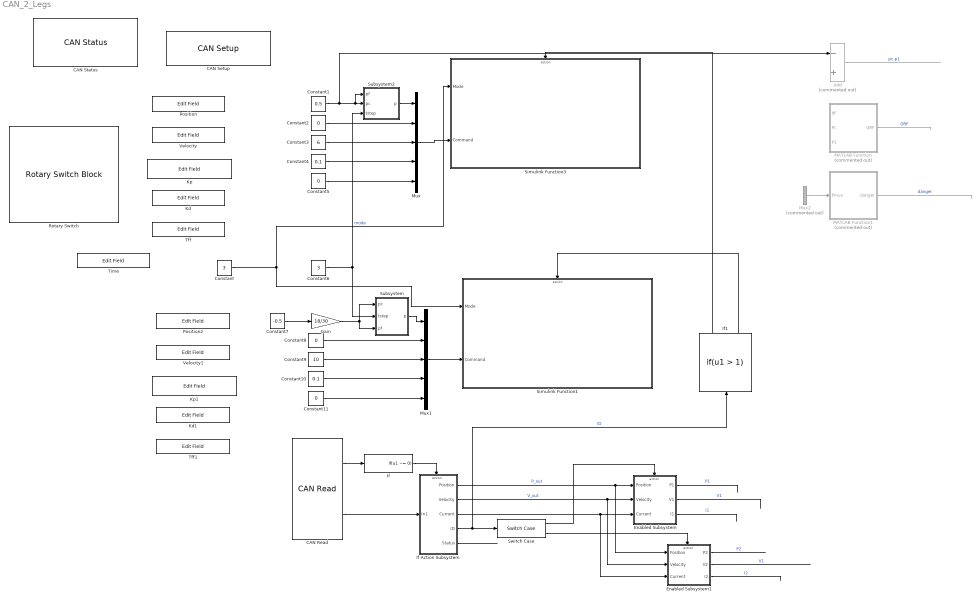
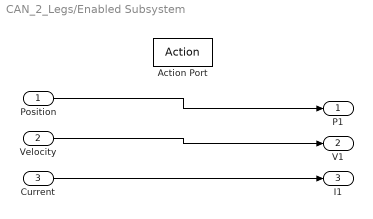
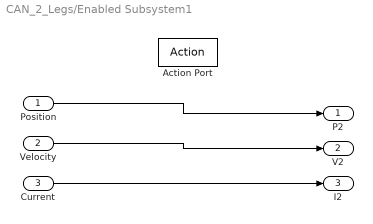
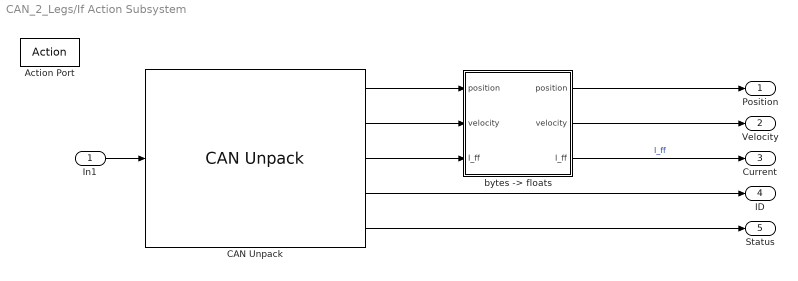
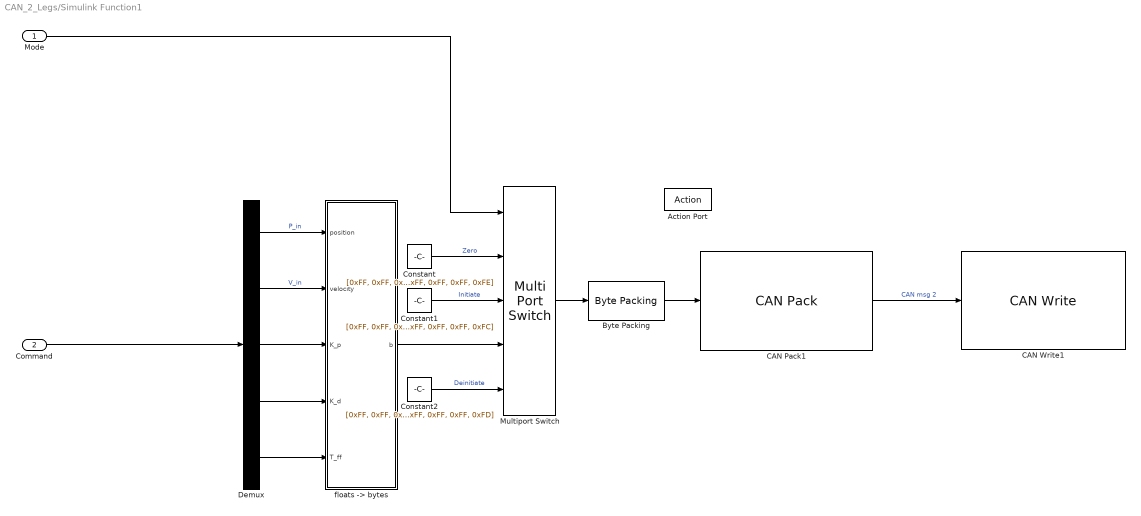
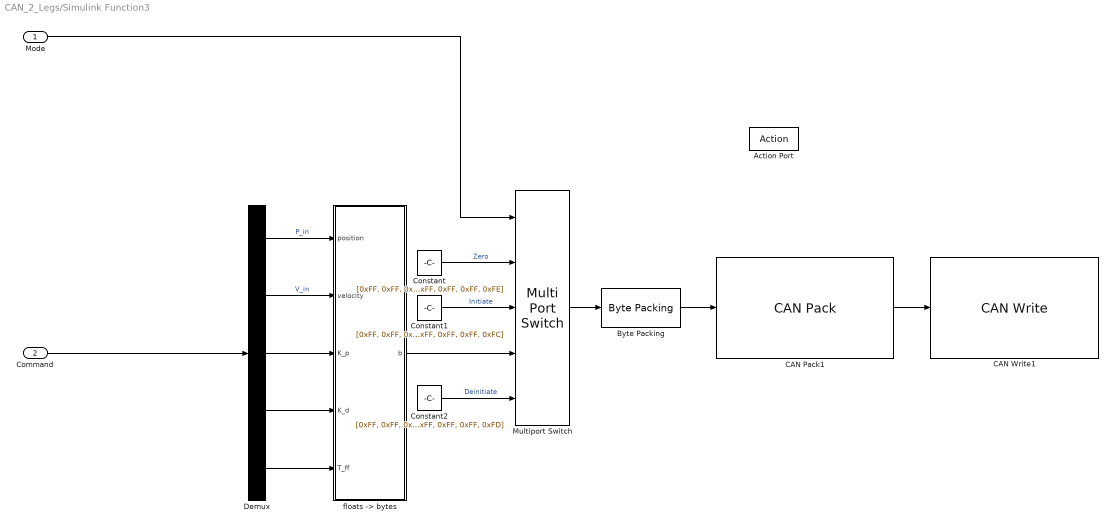
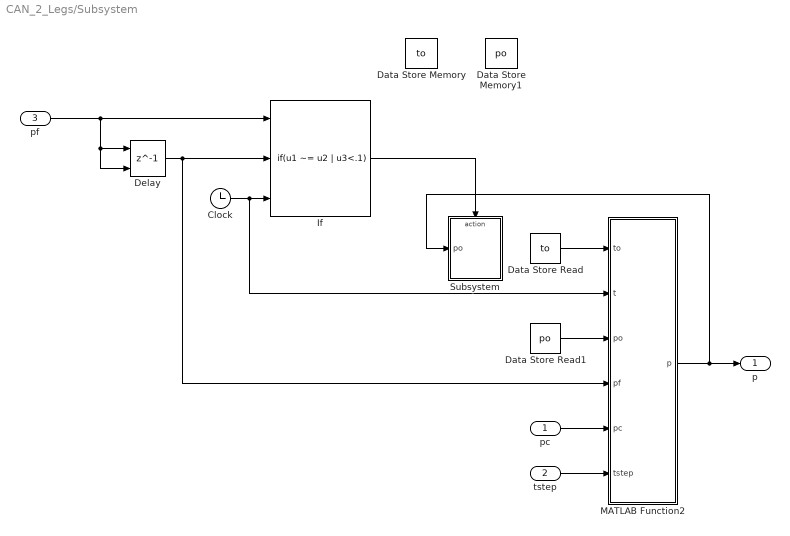
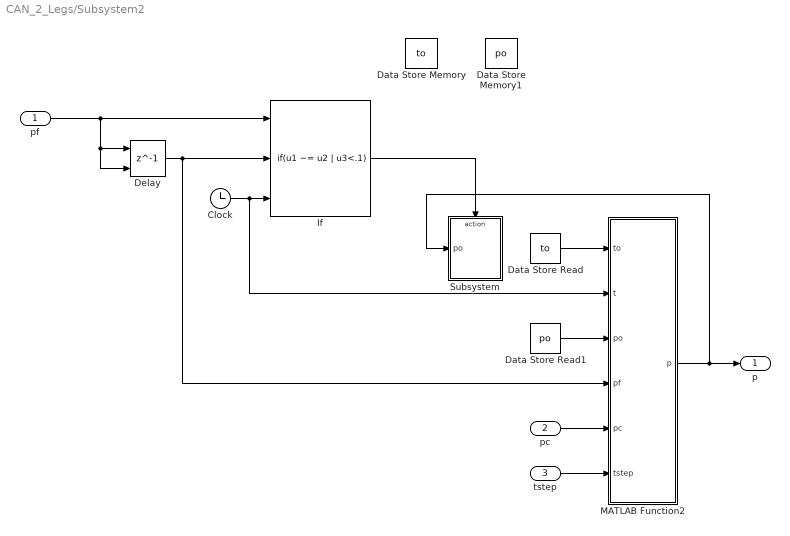
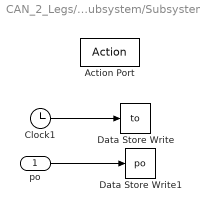
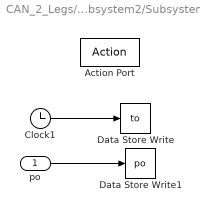
== matlab function CAN_2_Legs/If Action
Subsystem/bytes -> floats ==
function [position, velocity, I_ff] = fcn(position, velocity, I_ff)

P_MIN  =-95.5;  % [rad]
P_MAX  = 95.5;  % [rad]
V_MIN  =-45;    % [rad/s]
V_MAX  = 45;    % [rad/s]
I_MIN  =-40;    % []
I_MAX  = 40;    % []

position = position*(P_MAX  - P_MIN)/65535+ P_MIN;
velocity = velocity*(V_MAX  - V_MIN)/4095 + V_MIN;
I_ff     = I_ff*(I_MAX  - I_MIN)/4095 + I_MIN;

== matlab function CAN_2_Legs/Simulink Function1/floats -> bytes ==
function b = fcn(position, velocity, K_p, K_d, T_ff)

P_MIN  =-95.5;  % [rad]
P_MAX  = 95.5;  % [rad]
V_MIN  =-45;    % [rad/s] 30 to 45
V_MAX  = 45;    % [rad/s]
KP_MIN = 0;     % [Nm/rad]
KP_MAX = 500;   % [Nm/rad]
KD_MIN = 0;     % [Nm*s/rad
KD_MAX = 5;     % [Nm*s/rad
T_MIN  =-18;    % [Nm]
T_MAX  = 18;    % [Nm]

position = floor((max(min(position,P_MAX) ,P_MIN)  - P_MIN )*65535/(P_MAX  - P_MIN));
velocity = floor((max(min(velocity,V_MAX) ,V_MIN)  - V_MIN )*4095 /(V_MAX  - V_MIN));
K_p      = floor((max(min(K_p     ,KP_MAX),KP_MIN) - KP_MIN)*4095 /(KP_MAX - KP_MIN));
K_d      = floor((max(min(K_d     ,V_MAX) ,V_MIN)  - KD_MIN)*4095 /(KD_MAX - KD_MIN));
T_ff     = floor((max(min(T_ff    ,V_MAX) ,V_MIN)  - T_MIN )*4095 /(T_MAX  - T_MIN));

p  = dec2bin(position);
p  = [repmat('0', 1, 16-length(p)),p];
v  = dec2bin(velocity);
v  = [repmat('0', 1, 12-length(v)),v];
kp = dec2bin(K_p);
kp  = [repmat('0', 1, 12-length(kp)),kp];
kd = dec2bin(K_d);
kd  = [repmat('0', 1, 12-length(kd)),kd];
t  = dec2bin(T_ff);
t  = [repmat('0', 1, 12-length(t)),t];

B = repmat('0', 8, 8);

B(1,:) = p(1:8);
B(2,:) = p(9:16);
B(3,:) = v(1:8);
B(4,:) = [v(9:12),kp(1:4)];
B(5,:) = kp(5:12);
B(6,:) = kd(1:8);
B(7,:) = [kd(9:12),t(1:4)];
B(8,:) = t(5:12);

B  = bin2dec(B);

b = uint8(B);

== matlab function CAN_2_Legs/MATLAB Function ==
function GRF = isGRF(Iff, Pc,P1)
    GRF = 0;
    threshhold = 2.25;
    delP = Pc - P1;
    
    if((P1<0 && threshhold<Iff)|| (P1>0 && -threshhold>Iff))
        GRF = 1;
    end

== matlab function CAN_2_Legs/Simulink Function3/floats -> bytes ==
function b = fcn(position, velocity, K_p, K_d, T_ff)

P_MIN  =-95.5;  % [rad]
P_MAX  = 95.5;  % [rad]
V_MIN  =-45;    % [rad/s] 30 to 45
V_MAX  = 45;    % [rad/s]
KP_MIN = 0;     % [Nm/rad]
KP_MAX = 500;   % [Nm/rad]
KD_MIN = 0;     % [Nm*s/rad
KD_MAX = 5;     % [Nm*s/rad
T_MIN  =-18;    % [Nm]
T_MAX  = 18;    % [Nm]

position = floor((max(min(position,P_MAX) ,P_MIN)  - P_MIN )*65535/(P_MAX  - P_MIN));
velocity = floor((max(min(velocity,V_MAX) ,V_MIN)  - V_MIN )*4095 /(V_MAX  - V_MIN));
K_p      = floor((max(min(K_p     ,KP_MAX),KP_MIN) - KP_MIN)*4095 /(KP_MAX - KP_MIN));
K_d      = floor((max(min(K_d     ,V_MAX) ,V_MIN)  - KD_MIN)*4095 /(KD_MAX - KD_MIN));
T_ff     = floor((max(min(T_ff    ,V_MAX) ,V_MIN)  - T_MIN )*4095 /(T_MAX  - T_MIN));

p  = dec2bin(position);
p  = [repmat('0', 1, 16-length(p)),p];
v  = dec2bin(velocity);
v  = [repmat('0', 1, 12-length(v)),v];
kp = dec2bin(K_p);
kp  = [repmat('0', 1, 12-length(kp)),kp];
kd = dec2bin(K_d);
kd  = [repmat('0', 1, 12-length(kd)),kd];
t  = dec2bin(T_ff);
t  = [repmat('0', 1, 12-length(t)),t];

B = repmat('0', 8, 8);

B(1,:) = p(1:8);
B(2,:) = p(9:16);
B(3,:) = v(1:8);
B(4,:) = [v(9:12),kp(1:4)];
B(5,:) = kp(5:12);
B(6,:) = kd(1:8);
B(7,:) = [kd(9:12),t(1:4)];
B(8,:) = t(5:12);

B  = bin2dec(B);

b = uint8(B);

== matlab function CAN_2_Legs/MATLAB Function1 ==
function danger = isDanger(Pmux)
    % Pmux position matrix radians
    %       [p(ID1),p(ID2),p(ID3),p(IDN)]
    
    p1Max = .5; 
    p1Min = -.5;
    p2Max = .5;
    p2Min = -.5;
    
    P1 = Pmux(1:2:end);
    P2 = Pmux(2:2:end);
    
    
    danger = 0;
    if((0<sum(P1>p1Max + P1<p1Min)) || (0<sum(P2>p2Max + P2<p2Min)))
        danger = 1;
    end

== matlab function CAN_2_Legs/Subsystem2/MATLAB Function2 ==
function p = ramp(to,t,po,pf,pc, tstep)
    slope = (pf - po)/tstep;
    p = po + slope*(t-to);
    if((p > pf&& slope>0) || (p < pf && slope<0))
        p = pf;
    end
    if(t==0)
        p = pc;
    end

== matlab function CAN_2_Legs/Subsystem/MATLAB Function2 ==
function p = ramp(to,t,po,pf,pc, tstep)
    slope = (pf - po)/tstep;
    p = po + slope*(t-to);
    if((p > pf&& slope>0) || (p < pf && slope<0))
        p = pf;
    end
    if(t==0)
        p = pc;
    end

/*
 * CAN_2_Legs.cpp
 *
 * Academic License - for use in teaching, academic research, and meeting
 * course requirements at degree granting institutions only.  Not for
 * government, commercial, or other organizational use.
 *
 * Code generation for model "CAN_2_Legs".
 *
 * Model version              : 1.9
 * Simulink Coder version : 9.5 (R2021a) 14-Nov-2020
 * C++ source code generated on : Thu May 19 16:26:00 2022
 *
 * Target selection: slrealtime.tlc
 * Note: GRT includes extra infrastructure and instrumentation for prototyping
 * Embedded hardware selection: Intel->x86-64 (Linux 64)
 * Code generation objectives: Unspecified
 * Validation result: Not run
 */

#include "CAN_2_Legs.h"
#include "CAN_2_Legs_private.h"

/* Block signals (default storage) */
B_CAN_2_Legs_T CAN_2_Legs_B;

/* Block states (default storage) */
DW_CAN_2_Legs_T CAN_2_Legs_DW;

/* Real-time model */
RT_MODEL_CAN_2_Legs_T CAN_2_Legs_M_ = RT_MODEL_CAN_2_Legs_T();
RT_MODEL_CAN_2_Legs_T *const CAN_2_Legs_M = &CAN_2_Legs_M_;

/* Forward declaration for local functions */
static void CAN_2_Legs_dec2bin(real_T d, char_T s_data[], int32_T s_size[2]);

/* Function for MATLAB Function: '<S5>/floats -> bytes' */
static void CAN_2_Legs_dec2bin(real_T d, char_T s_data[], int32_T s_size[2])
{
  real_T b_d;
  real_T olddi;
  int32_T idx;
  int32_T p;
  int32_T pmax;
  int32_T pmin;
  int32_T pow2p;
  char_T sfull[64];
  char_T b;
  char_T sfull_0;
  boolean_T carry;
  boolean_T exitg1;
  if (d < 0.0) {
    b_d = -d;
    for (idx = 0; idx < 64; idx++) {
      sfull[idx] = '0';
    }

    idx = 64;
    exitg1 = false;
    while ((!exitg1) && (idx > 0)) {
      olddi = b_d;
      b_d = std::floor(b_d / 2.0);
      if (2.0 * b_d < olddi) {
        sfull[idx - 1] = '1';
      }

      if (!(b_d > 0.0)) {
        exitg1 = true;
      } else {
        idx--;
      }
    }

    for (idx = 0; idx < 64; idx++) {
      sfull_0 = sfull[idx];
      b = sfull_0;
      sfull_0 = '1';
      if (b == '1') {
        sfull_0 = '0';
      }

      sfull[idx] = sfull_0;
    }

    carry = true;
    for (idx = 63; idx >= 0; idx--) {
      sfull_0 = sfull[idx];
      if (carry) {
        if (sfull_0 == '1') {
          sfull_0 = '0';
        } else {
          sfull_0 = '1';
          carry = false;
        }
      }

      sfull[idx] = sfull_0;
    }
  } else {
    b_d = d;
    for (idx = 0; idx < 64; idx++) {
      sfull[idx] = '0';
    }

    idx = 64;
    exitg1 = false;
    while ((!exitg1) && (idx > 0)) {
      olddi = b_d;
      b_d = std::floor(b_d / 2.0);
      if (2.0 * b_d < olddi) {
        sfull[idx - 1] = '1';
      }

      if (!(b_d > 0.0)) {
        exitg1 = true;
      } else {
        idx--;
      }
    }
  }

  if (d < 0.0) {
    idx = 0;
    pmax = 0;
    exitg1 = false;
    while ((!exitg1) && (pmax < 64)) {
      if (sfull[pmax] == '0') {
        idx = pmax + 1;
        exitg1 = true;
      } else {
        pmax++;
      }
    }

    if (idx == 0) {
      pmax = 55;
      idx = 8;
    } else {
      idx = 66 - idx;
      if (4 > idx) {
        idx = 4;
      }

      pmax = 31;
      pmin = 0;
      exitg1 = false;
      while ((!exitg1) && (pmax - pmin > 1)) {
        p = (pmin + pmax) >> 1;
        pow2p = 1 << p;
        if (pow2p == idx) {
          pmax = p;
          exitg1 = true;
        } else if (pow2p > idx) {
          pmax = p;
        } else {
          pmin = p;
        }
      }

      idx = 1 << pmax;
      if (64 < idx) {
        idx = 64;
      }

      pmax = 63 - idx;
    }
  } else {
    idx = 0;
    pmax = 0;
    exitg1 = false;
    while ((!exitg1) && (pmax < 64)) {
      if (sfull[pmax] == '1') {
        idx = pmax + 1;
        exitg1 = true;
      } else {
        pmax++;
      }
    }

    if (idx == 0) {
      idx = 64;
    }

    pmax = idx - 2;
    idx = 65 - idx;
  }

  if (1 >= idx) {
    s_size[0] = 1;
    s_size[1] = 1;
  } else {
    s_size[0] = 1;
    s_size[1] = idx;
  }

  for (pmin = 0; pmin < idx; pmin++) {
    s_data[pmin] = sfull[(pmax + pmin) + 1];
  }
}

real_T rt_roundd_snf(real_T u)
{
  real_T y;
  if (std::abs(u) < 4.503599627370496E+15) {
    if (u >= 0.5) {
      y = std::floor(u + 0.5);
    } else if (u > -0.5) {
      y = u * 0.0;
    } else {
      y = std::ceil(u - 0.5);
    }
  } else {
    y = u;
  }

  return y;
}

/*
 * Output and update for atomic system:
 *    '<S5>/floats -> bytes'
 *    '<S4>/floats -> bytes'
 */
void CAN_2_Legs_floatsbytes(real_T rtu_position, real_T rtu_velocity, real_T
  rtu_K_p, real_T rtu_K_d, real_T rtu_T_ff, B_floatsbytes_CAN_2_Legs_T *localB)
{
  real_T b_B[8];
  real_T y;
  uint64_T a;
  uint64_T p2;
  int32_T i;
  int32_T loop_ub;
  int32_T loop_ub_0;
  char_T p_data[79];
  char_T kd_data[75];
  char_T kp_data[75];
  char_T t_data[75];
  char_T v_data[75];
  char_T B[64];
  int8_T outsize_idx_1;
  uint8_T tmp;
  static const boolean_T b[128] = { false, false, false, false, false, false,
    false, false, false, true, true, true, true, true, false, false, false,
    false, false, false, false, false, false, false, false, false, false, false,
    true, true, true, true, true, false, false, false, false, false, false,
    false, false, false, false, false, false, false, false, false, false, false,
    false, false, false, false, false, false, false, false, false, false, false,
    false, false, false, false, false, false, false, false, false, false, false,
    false, false, false, false, false, false, false, false, false, false, false,
    false, false, false, false, false, false, false, false, false, false, false,
    false, false, false, false, false, false, false, false, false, false, false,
    false, false, false, false, false, false, false, false, false, false, false,
    false, false, false, false, false, false, false, false, false, false, false,
    false };

  int32_T c_size[2];
  if (rtu_position < 95.5) {
    y = rtu_position;
  } else {
    y = 95.5;
  }

  if (!(y > -95.5)) {
    y = -95.5;
  }

  CAN_2_Legs_dec2bin(std::floor((y - -95.5) * 65535.0 / 191.0), B, c_size);
  outsize_idx_1 = static_cast<int8_T>(16 - c_size[1]);
  loop_ub = outsize_idx_1;
  loop_ub_0 = c_size[1];
  for (i = 0; i < loop_ub; i++) {
    p_data[i] = '0';
  }

  for (i = 0; i < loop_ub_0; i++) {
    p_data[i + loop_ub] = B[i];
  }

  if (rtu_velocity < 45.0) {
    y = rtu_velocity;
  } else {
    y = 45.0;
  }

  if (!(y > -45.0)) {
    y = -45.0;
  }

  CAN_2_Legs_dec2bin(std::floor((y - -45.0) * 4095.0 / 90.0), B, c_size);
  outsize_idx_1 = static_cast<int8_T>(12 - c_size[1]);
  loop_ub = outsize_idx_1;
  loop_ub_0 = c_size[1];
  for (i = 0; i < loop_ub; i++) {
    v_data[i] = '0';
  }

  for (i = 0; i < loop_ub_0; i++) {
    v_data[i + loop_ub] = B[i];
  }

  if (rtu_K_p < 500.0) {
    y = rtu_K_p;
  } else {
    y = 500.0;
  }

  if (!(y > 0.0)) {
    y = 0.0;
  }

  CAN_2_Legs_dec2bin(std::floor(y * 4095.0 / 500.0), B, c_size);
  outsize_idx_1 = static_cast<int8_T>(12 - c_size[1]);
  loop_ub = outsize_idx_1;
  loop_ub_0 = c_size[1];
  for (i = 0; i < loop_ub; i++) {
    kp_data[i] = '0';
  }

  for (i = 0; i < loop_ub_0; i++) {
    kp_data[i + loop_ub] = B[i];
  }

  if (rtu_K_d < 45.0) {
    y = rtu_K_d;
  } else {
    y = 45.0;
  }

  if (!(y > -45.0)) {
    y = -45.0;
  }

  CAN_2_Legs_dec2bin(std::floor(y * 4095.0 / 5.0), B, c_size);
  outsize_idx_1 = static_cast<int8_T>(12 - c_size[1]);
  loop_ub = outsize_idx_1;
  loop_ub_0 = c_size[1];
  for (i = 0; i < loop_ub; i++) {
    kd_data[i] = '0';
  }

  for (i = 0; i < loop_ub_0; i++) {
    kd_data[i + loop_ub] = B[i];
  }

  if (rtu_T_ff < 45.0) {
    y = rtu_T_ff;
  } else {
    y = 45.0;
  }

  if (!(y > -45.0)) {
    y = -45.0;
  }

  CAN_2_Legs_dec2bin(std::floor((y - -18.0) * 4095.0 / 36.0), B, c_size);
  outsize_idx_1 = static_cast<int8_T>(12 - c_size[1]);
  loop_ub = outsize_idx_1;
  loop_ub_0 = c_size[1];
  for (i = 0; i < loop_ub; i++) {
    t_data[i] = '0';
  }

  for (i = 0; i < loop_ub_0; i++) {
    t_data[i + loop_ub] = B[i];
  }

  for (i = 0; i < 64; i++) {
    B[i] = '0';
  }

  for (i = 0; i < 8; i++) {
    B[i << 3] = p_data[i];
    B[(i << 3) + 1] = p_data[i + 8];
    B[(i << 3) + 2] = v_data[i];
  }

  B[3] = v_data[8];
  B[35] = kp_data[0];
  B[11] = v_data[9];
  B[43] = kp_data[1];
  B[19] = v_data[10];
  B[51] = kp_data[2];
  B[27] = v_data[11];
  B[59] = kp_data[3];
  for (i = 0; i < 8; i++) {
    B[(i << 3) + 4] = kp_data[i + 4];
    B[(i << 3) + 5] = kd_data[i];
  }

  B[6] = kd_data[8];
  B[38] = t_data[0];
  B[14] = kd_data[9];
  B[46] = t_data[1];
  B[22] = kd_data[10];
  B[54] = t_data[2];
  B[30] = kd_data[11];
  B[62] = t_data[3];
  for (i = 0; i < 8; i++) {
    B[(i << 3) + 7] = t_data[i + 4];
  }

  for (i = 0; i < 8; i++) {
    loop_ub = 1;
    while ((loop_ub < 8) && b[static_cast<uint8_T>(B[((loop_ub - 1) << 3) + i])])
    {
      loop_ub++;
    }

    loop_ub_0 = 7;
    while ((loop_ub_0 + 1 > loop_ub) && b[static_cast<uint8_T>(B[(loop_ub_0 << 3)
            + i])]) {
      loop_ub_0--;
    }

    p2 = 1UL;
    a = 0UL;
    while ((loop_ub < loop_ub_0 + 1) && b[static_cast<uint8_T>(B[((loop_ub - 1) <<
             3) + i])]) {
      loop_ub++;
    }

    while (loop_ub_0 + 1 >= loop_ub) {
      if (B[(loop_ub_0 << 3) + i] == '1') {
        a += p2;
        p2 += p2;
      } else if (B[(loop_ub_0 << 3) + i] == '0') {
        p2 += p2;
      }

      loop_ub_0--;
    }

    b_B[i] = static_cast<real_T>(a);
  }

  for (i = 0; i < 8; i++) {
    y = rt_roundd_snf(b_B[i]);
    if (y < 256.0) {
      if (y >= 0.0) {
        tmp = static_cast<uint8_T>(y);
      } else {
        tmp = 0U;
      }
    } else {
      tmp = MAX_uint8_T;
    }

    localB->b[i] = tmp;
  }
}

/*
 * Output and update for action system:
 *    '<S6>/Subsystem'
 *    '<S7>/Subsystem'
 */
void CAN_2_Legs_Subsystem(RT_MODEL_CAN_2_Legs_T * const CAN_2_Legs_M, real_T
  rtu_po, real_T *rtd_po, real_T *rtd_to, B_Subsystem_CAN_2_Legs_T *localB)
{
  /* DataStoreWrite: '<S12>/Data Store Write1' */
  *rtd_po = rtu_po;

  /* Clock: '<S12>/Clock1' */
  localB->Clock1 = CAN_2_Legs_M->Timing.t[0];

  /* DataStoreWrite: '<S12>/Data Store Write' */
  *rtd_to = localB->Clock1;
}

/* Model step function */
void CAN_2_Legs_step(void)
{
  real_T I_ff;
  real_T position;
  real_T velocity;
  int32_T i;
  int8_T rtAction;

  /* Reset subsysRan breadcrumbs */
  srClearBC(CAN_2_Legs_DW.IfActionSubsystem_SubsysRanBC);

  /* Reset subsysRan breadcrumbs */
  srClearBC(CAN_2_Legs_DW.SimulinkFunction3_SubsysRanBC);

  /* Reset subsysRan breadcrumbs */
  srClearBC(CAN_2_Legs_DW.SimulinkFunction1_SubsysRanBC);

  /* Reset subsysRan breadcrumbs */
  srClearBC(CAN_2_Legs_DW.Subsystem.Subsystem_SubsysRanBC);

  /* Reset subsysRan breadcrumbs */
  srClearBC(CAN_2_Legs_DW.EnabledSubsystem_SubsysRanBC);

  /* Reset subsysRan breadcrumbs */
  srClearBC(CAN_2_Legs_DW.EnabledSubsystem1_SubsysRanBC);

  /* S-Function (sg_IO602_IO691_setup_s): '<Root>/CAN Setup ' */

  /* Level2 S-Function Block: '<Root>/CAN Setup ' (sg_IO602_IO691_setup_s) */
  {
    SimStruct *rts = CAN_2_Legs_M->childSfunctions[2];
    sfcnOutputs(rts,0);
  }

  /* S-Function (sg_IO602_IO691_read_s): '<Root>/CAN Read' */

  /* Level2 S-Function Block: '<Root>/CAN Read' (sg_IO602_IO691_read_s) */
  {
    SimStruct *rts = CAN_2_Legs_M->childSfunctions[3];
    sfcnOutputs(rts,0);
  }

  /* If: '<Root>/If' */
  if (CAN_2_Legs_B.CANRead_o1) {
    /* Outputs for IfAction SubSystem: '<Root>/If Action Subsystem' incorporates:
     *  ActionPort: '<S3>/Action Port'
     */
    /* S-Function (scanunpack): '<S3>/CAN Unpack' */
    {
      /* S-Function (scanunpack): '<S3>/CAN Unpack' */
      uint8_T msgReceived = 0;
      if ((6 == CAN_2_Legs_B.CANRead_o2.Length) && (CAN_2_Legs_B.CANRead_o2.ID
           != INVALID_CAN_ID) ) {
        msgReceived = 1;

        {
          /* --------------- START Unpacking signal 0 ------------------
           *  startBit                = 16
           *  length                  = 16
           *  desiredSignalByteLayout = BIGENDIAN
           *  dataType                = UNSIGNED
           *  factor                  = 1.0
           *  offset                  = 0.0
           * -----------------------------------------------------------------------*/
          {
            real64_T outValue = 0;

            {
              uint16_T unpackedValue = 0;

              {
                uint16_T tempValue = (uint16_T) (0);

                {
                  tempValue = tempValue | (uint16_T)
                    (CAN_2_Legs_B.CANRead_o2.Data[2]);
                  tempValue = tempValue | (uint16_T)((uint16_T)
                    (CAN_2_Legs_B.CANRead_o2.Data[1]) << 8);
                }

                unpackedValue = tempValue;
              }

              outValue = (real64_T) (unpackedValue);
            }

            {
              real64_T result = (real64_T) outValue;
              CAN_2_Legs_B.CANUnpack_o1 = result;
            }
          }

          /* --------------- START Unpacking signal 1 ------------------
           *  startBit                = 36
           *  length                  = 12
           *  desiredSignalByteLayout = BIGENDIAN
           *  dataType                = UNSIGNED
           *  factor                  = 1.0
           *  offset                  = 0.0
           * -----------------------------------------------------------------------*/
          {
            real64_T outValue = 0;

            {
              uint16_T unpackedValue = 0;

              {
                uint16_T tempValue = (uint16_T) (0);

                {
                  tempValue = tempValue | (uint16_T)((uint16_T)((uint16_T)
                    (CAN_2_Legs_B.CANRead_o2.Data[4]) & (uint16_T)(0xF0U)) >> 4);
                  tempValue = tempValue | (uint16_T)((uint16_T)
                    (CAN_2_Legs_B.CANRead_o2.Data[3]) << 4);
                }

                unpackedValue = tempValue;
              }

              outValue = (real64_T) (unpackedValue);
            }

            {
              real64_T result = (real64_T) outValue;
              CAN_2_Legs_B.CANUnpack_o2 = result;
            }
          }

          /* --------------- START Unpacking signal 2 ------------------
           *  startBit                = 40
           *  length                  = 12
           *  desiredSignalByteLayout = BIGENDIAN
           *  dataType                = UNSIGNED
           *  factor                  = 1.0
           *  offset                  = 0.0
           * -----------------------------------------------------------------------*/
          {
            real64_T outValue = 0;

            {
              uint16_T unpackedValue = 0;

              {
                uint16_T tempValue = (uint16_T) (0);

                {
                  tempValue = tempValue | (uint16_T)
                    (CAN_2_Legs_B.CANRead_o2.Data[5]);
                  tempValue = tempValue | (uint16_T)((uint16_T)((uint16_T)
                    (CAN_2_Legs_B.CANRead_o2.Data[4]) & (uint16_T)(0xFU)) << 8);
                }

                unpackedValue = tempValue;
              }

              outValue = (real64_T) (unpackedValue);
            }

            {
              real64_T result = (real64_T) outValue;
              CAN_2_Legs_B.CANUnpack_o3 = result;
            }
          }

          /* --------------- START Unpacking signal 3 ------------------
           *  startBit                = 0
           *  length                  = 8
           *  desiredSignalByteLayout = BIGENDIAN
           *  dataType                = UNSIGNED
           *  factor                  = 1.0
           *  offset                  = 0.0
           * -----------------------------------------------------------------------*/
          {
            real64_T outValue = 0;

            {
              uint8_T unpackedValue = 0;

              {
                uint8_T tempValue = (uint8_T) (0);

                {
                  tempValue = tempValue | (uint8_T)
                    (CAN_2_Legs_B.CANRead_o2.Data[0]);
                }

                unpackedValue = tempValue;
              }

              outValue = (real64_T) (unpackedValue);
            }

            {
              real64_T result = (real64_T) outValue;
              CAN_2_Legs_B.CANUnpack_o4 = result;
            }
          }
        }
      }

      /* Status port */
      CAN_2_Legs_B.CANUnpack_o5 = msgReceived;
    }

    /* MATLAB Function: '<S3>/bytes -> floats' */
    CAN_2_Legs_B.position = CAN_2_Legs_B.CANUnpack_o1;
    CAN_2_Legs_B.velocity = CAN_2_Legs_B.CANUnpack_o2;
    CAN_2_Legs_B.I_ff = CAN_2_Legs_B.CANUnpack_o3;
    I_ff = CAN_2_Legs_B.I_ff;
    velocity = CAN_2_Legs_B.velocity;
    position = CAN_2_Legs_B.position;
    CAN_2_Legs_B.I_ff = I_ff;
    CAN_2_Legs_B.velocity = velocity;
    CAN_2_Legs_B.position = position;
    CAN_2_Legs_B.position = CAN_2_Legs_B.position * 191.0 / 65535.0 + -95.5;
    CAN_2_Legs_B.velocity = CAN_2_Legs_B.velocity * 90.0 / 4095.0 + -45.0;
    CAN_2_Legs_B.I_ff = CAN_2_Legs_B.I_ff * 80.0 / 4095.0 + -40.0;

    /* End of Outputs for SubSystem: '<Root>/If Action Subsystem' */

    /* Update for IfAction SubSystem: '<Root>/If Action Subsystem' incorporates:
     *  ActionPort: '<S3>/Action Port'
     */
    /* Update for If: '<Root>/If' */
    srUpdateBC(CAN_2_Legs_DW.IfActionSubsystem_SubsysRanBC);

    /* End of Update for SubSystem: '<Root>/If Action Subsystem' */
  }

  /* End of If: '<Root>/If' */

  /* Constant: '<Root>/Constant' */
  CAN_2_Legs_B.mode = CAN_2_Legs_cal->Constant_Value;

  /* Constant: '<Root>/Constant2' */
  CAN_2_Legs_B.Constant2 = CAN_2_Legs_cal->Constant2_Value;

  /* DataStoreRead: '<S7>/Data Store Read' */
  CAN_2_Legs_B.DataStoreRead = CAN_2_Legs_DW.to_f;

  /* Clock: '<S7>/Clock' */
  CAN_2_Legs_B.Clock = CAN_2_Legs_M->Timing.t[0];

  /* DataStoreRead: '<S7>/Data Store Read1' */
  CAN_2_Legs_B.DataStoreRead1 = CAN_2_Legs_DW.po_m;

  /* Delay: '<S7>/Delay' incorporates:
   *  Constant: '<Root>/Constant1'
   */
  if (CAN_2_Legs_DW.icLoad) {
    CAN_2_Legs_DW.Delay_DSTATE = CAN_2_Legs_cal->Constant1_Value;
  }

  /* Delay: '<S7>/Delay' */
  CAN_2_Legs_B.Delay = CAN_2_Legs_DW.Delay_DSTATE;

  /* MATLAB Function: '<S7>/MATLAB Function2' incorporates:
   *  Constant: '<Root>/Constant1'
   *  Constant: '<Root>/Constant6'
   */
  I_ff = (CAN_2_Legs_B.Delay - CAN_2_Legs_B.DataStoreRead1) /
    CAN_2_Legs_cal->Constant6_Value;
  CAN_2_Legs_B.p = (CAN_2_Legs_B.Clock - CAN_2_Legs_B.DataStoreRead) * I_ff +
    CAN_2_Legs_B.DataStoreRead1;
  if (((CAN_2_Legs_B.p > CAN_2_Legs_B.Delay) && (I_ff > 0.0)) ||
      ((CAN_2_Legs_B.p < CAN_2_Legs_B.Delay) && (I_ff < 0.0))) {
    CAN_2_Legs_B.p = CAN_2_Legs_B.Delay;
  }

  if (CAN_2_Legs_B.Clock == 0.0) {
    CAN_2_Legs_B.p = CAN_2_Legs_cal->Constant1_Value;
  }

  /* End of MATLAB Function: '<S7>/MATLAB Function2' */

  /* Constant: '<Root>/Constant8' */
  CAN_2_Legs_B.Constant8 = CAN_2_Legs_cal->Constant8_Value;

  /* DataStoreRead: '<S6>/Data Store Read' */
  CAN_2_Legs_B.DataStoreRead_k = CAN_2_Legs_DW.to;

  /* Clock: '<S6>/Clock' */
  CAN_2_Legs_B.Clock_f = CAN_2_Legs_M->Timing.t[0];

  /* DataStoreRead: '<S6>/Data Store Read1' */
  CAN_2_Legs_B.DataStoreRead1_a = CAN_2_Legs_DW.po;

  /* Gain: '<Root>/Gain' incorporates:
   *  Constant: '<Root>/Constant7'
   */
  CAN_2_Legs_B.Gain = CAN_2_Legs_cal->Gain_Gain *
    CAN_2_Legs_cal->Constant7_Value;

  /* Delay: '<S6>/Delay' */
  if (CAN_2_Legs_DW.icLoad_c) {
    CAN_2_Legs_DW.Delay_DSTATE_b = CAN_2_Legs_B.Gain;
  }

  /* Delay: '<S6>/Delay' */
  CAN_2_Legs_B.Delay_f = CAN_2_Legs_DW.Delay_DSTATE_b;

  /* MATLAB Function: '<S6>/MATLAB Function2' incorporates:
   *  Constant: '<Root>/Constant6'
   */
  I_ff = (CAN_2_Legs_B.Delay_f - CAN_2_Legs_B.DataStoreRead1_a) /
    CAN_2_Legs_cal->Constant6_Value;
  CAN_2_Legs_B.p_p = (CAN_2_Legs_B.Clock_f - CAN_2_Legs_B.DataStoreRead_k) *
    I_ff + CAN_2_Legs_B.DataStoreRead1_a;
  if (((CAN_2_Legs_B.p_p > CAN_2_Legs_B.Delay_f) && (I_ff > 0.0)) ||
      ((CAN_2_Legs_B.p_p < CAN_2_Legs_B.Delay_f) && (I_ff < 0.0))) {
    CAN_2_Legs_B.p_p = CAN_2_Legs_B.Delay_f;
  }

  if (CAN_2_Legs_B.Clock_f == 0.0) {
    CAN_2_Legs_B.p_p = CAN_2_Legs_B.Gain;
  }

  /* End of MATLAB Function: '<S6>/MATLAB Function2' */

  /* If: '<Root>/If1' */
  if (CAN_2_Legs_B.CANUnpack_o4 > 1.0) {
    /* Outputs for IfAction SubSystem: '<Root>/Simulink Function3' incorporates:
     *  ActionPort: '<S5>/Action Port'
     */
    /* MATLAB Function: '<S5>/floats -> bytes' incorporates:
     *  Constant: '<Root>/Constant3'
     *  Constant: '<Root>/Constant4'
     *  Constant: '<Root>/Constant5'
     */
    CAN_2_Legs_floatsbytes(CAN_2_Legs_B.p, CAN_2_Legs_B.Constant2,
      CAN_2_Legs_cal->Constant3_Value, CAN_2_Legs_cal->Constant4_Value,
      CAN_2_Legs_cal->Constant5_Value, &CAN_2_Legs_B.sf_floatsbytes);

    /* MultiPortSwitch: '<S5>/Multiport Switch' */
    switch (static_cast<int32_T>(CAN_2_Legs_B.mode)) {
     case 1:
      /* MultiPortSwitch: '<S5>/Multiport Switch' incorporates:
       *  Constant: '<S5>/Constant'
       */
      for (i = 0; i < 8; i++) {
        CAN_2_Legs_B.MultiportSwitch_i[i] = CAN_2_Legs_cal->Constant_Value_i[i];
      }
      break;

     case 2:
      /* MultiPortSwitch: '<S5>/Multiport Switch' incorporates:
       *  Constant: '<S5>/Constant1'
       */
      for (i = 0; i < 8; i++) {
        CAN_2_Legs_B.MultiportSwitch_i[i] = CAN_2_Legs_cal->Constant1_Value_e[i];
      }
      break;

     case 3:
      /* MultiPortSwitch: '<S5>/Multiport Switch' */
      for (i = 0; i < 8; i++) {
        CAN_2_Legs_B.MultiportSwitch_i[i] = CAN_2_Legs_B.sf_floatsbytes.b[i];
      }
      break;

     default:
      /* MultiPortSwitch: '<S5>/Multiport Switch' incorporates:
       *  Constant: '<S5>/Constant2'
       */
      for (i = 0; i < 8; i++) {
        CAN_2_Legs_B.MultiportSwitch_i[i] = CAN_2_Legs_cal->Constant2_Value_k[i];
      }
      break;
    }

    /* End of MultiPortSwitch: '<S5>/Multiport Switch' */

    /* S-Function (slrealtimebytepacking): '<S5>/Byte Packing' */

    /* Byte Packing: <S5>/Byte Packing */
    (void)memcpy((uint8_T*)&CAN_2_Legs_B.BytePacking_d[0] + 0, (uint8_T*)
                 &CAN_2_Legs_B.MultiportSwitch_i[0], 8);

    /* S-Function (scanpack): '<S5>/CAN Pack1' */
    /* S-Function (scanpack): '<S5>/CAN Pack1' */
    CAN_2_Legs_B.CANPack1.ID = 8U;
    CAN_2_Legs_B.CANPack1.Length = 8U;
    CAN_2_Legs_B.CANPack1.Extended = 0U;
    CAN_2_Legs_B.CANPack1.Remote = 0;
    CAN_2_Legs_B.CANPack1.Data[0] = 0;
    CAN_2_Legs_B.CANPack1.Data[1] = 0;
    CAN_2_Legs_B.CANPack1.Data[2] = 0;
    CAN_2_Legs_B.CANPack1.Data[3] = 0;
    CAN_2_Legs_B.CANPack1.Data[4] = 0;
    CAN_2_Legs_B.CANPack1.Data[5] = 0;
    CAN_2_Legs_B.CANPack1.Data[6] = 0;
    CAN_2_Legs_B.CANPack1.Data[7] = 0;

    {
      (void) std::memcpy((CAN_2_Legs_B.CANPack1.Data),
                         &CAN_2_Legs_B.BytePacking_d[0],
                         8 * sizeof(uint8_T));
    }

    /* S-Function (sg_IO602_IO691_write_s): '<S5>/CAN Write1' */

    /* Level2 S-Function Block: '<S5>/CAN Write1' (sg_IO602_IO691_write_s) */
    {
      SimStruct *rts = CAN_2_Legs_M->childSfunctions[0];
      sfcnOutputs(rts,0);
    }

    /* Update for IfAction SubSystem: '<Root>/Simulink Function3' incorporates:
     *  ActionPort: '<S5>/Action Port'
     */
    /* Update for If: '<Root>/If1' */
    srUpdateBC(CAN_2_Legs_DW.SimulinkFunction3_SubsysRanBC);

    /* End of Update for SubSystem: '<Root>/Simulink Function3' */
  } else {
    /* Outputs for IfAction SubSystem: '<Root>/Simulink Function1' incorporates:
     *  ActionPort: '<S4>/Action Port'
     */
    /* MATLAB Function: '<S4>/floats -> bytes' incorporates:
     *  Constant: '<Root>/Constant10'
     *  Constant: '<Root>/Constant11'
     *  Constant: '<Root>/Constant9'
     */
    CAN_2_Legs_floatsbytes(CAN_2_Legs_B.p_p, CAN_2_Legs_B.Constant8,
      CAN_2_Legs_cal->Constant9_Value, CAN_2_Legs_cal->Constant10_Value,
      CAN_2_Legs_cal->Constant11_Value, &CAN_2_Legs_B.sf_floatsbytes_m);

    /* MultiPortSwitch: '<S4>/Multiport Switch' */
    switch (static_cast<int32_T>(CAN_2_Legs_B.mode)) {
     case 1:
      /* MultiPortSwitch: '<S4>/Multiport Switch' incorporates:
       *  Constant: '<S4>/Constant'
       */
      for (i = 0; i < 8; i++) {
        CAN_2_Legs_B.MultiportSwitch[i] = CAN_2_Legs_cal->Constant_Value_l[i];
      }
      break;

     case 2:
      /* MultiPortSwitch: '<S4>/Multiport Switch' incorporates:
       *  Constant: '<S4>/Constant1'
       */
      for (i = 0; i < 8; i++) {
        CAN_2_Legs_B.MultiportSwitch[i] = CAN_2_Legs_cal->Constant1_Value_m[i];
      }
      break;

     case 3:
      /* MultiPortSwitch: '<S4>/Multiport Switch' */
      for (i = 0; i < 8; i++) {
        CAN_2_Legs_B.MultiportSwitch[i] = CAN_2_Legs_B.sf_floatsbytes_m.b[i];
      }
      break;

     default:
      /* MultiPortSwitch: '<S4>/Multiport Switch' incorporates:
       *  Constant: '<S4>/Constant2'
       */
      for (i = 0; i < 8; i++) {
        CAN_2_Legs_B.MultiportSwitch[i] = CAN_2_Legs_cal->Constant2_Value_g[i];
      }
      break;
    }

    /* End of MultiPortSwitch: '<S4>/Multiport Switch' */

    /* S-Function (slrealtimebytepacking): '<S4>/Byte Packing' */

    /* Byte Packing: <S4>/Byte Packing */
    (void)memcpy((uint8_T*)&CAN_2_Legs_B.BytePacking[0] + 0, (uint8_T*)
                 &CAN_2_Legs_B.MultiportSwitch[0], 8);

    /* S-Function (scanpack): '<S4>/CAN Pack1' */
    /* S-Function (scanpack): '<S4>/CAN Pack1' */
    CAN_2_Legs_B.CANmsg2.ID = 7U;
    CAN_2_Legs_B.CANmsg2.Length = 8U;
    CAN_2_Legs_B.CANmsg2.Extended = 0U;
    CAN_2_Legs_B.CANmsg2.Remote = 0;
    CAN_2_Legs_B.CANmsg2.Data[0] = 0;
    CAN_2_Legs_B.CANmsg2.Data[1] = 0;
    CAN_2_Legs_B.CANmsg2.Data[2] = 0;
    CAN_2_Legs_B.CANmsg2.Data[3] = 0;
    CAN_2_Legs_B.CANmsg2.Data[4] = 0;
    CAN_2_Legs_B.CANmsg2.Data[5] = 0;
    CAN_2_Legs_B.CANmsg2.Data[6] = 0;
    CAN_2_Legs_B.CANmsg2.Data[7] = 0;

    {
      (void) std::memcpy((CAN_2_Legs_B.CANmsg2.Data), &CAN_2_Legs_B.BytePacking
                         [0],
                         8 * sizeof(uint8_T));
    }

    /* S-Function (sg_IO602_IO691_write_s): '<S4>/CAN Write1' */

    /* Level2 S-Function Block: '<S4>/CAN Write1' (sg_IO602_IO691_write_s) */
    {
      SimStruct *rts = CAN_2_Legs_M->childSfunctions[1];
      sfcnOutputs(rts,0);
    }

    /* Update for IfAction SubSystem: '<Root>/Simulink Function1' incorporates:
     *  ActionPort: '<S4>/Action Port'
     */
    /* Update for If: '<Root>/If1' */
    srUpdateBC(CAN_2_Legs_DW.SimulinkFunction1_SubsysRanBC);

    /* End of Update for SubSystem: '<Root>/Simulink Function1' */
  }

  /* End of If: '<Root>/If1' */
  /* SwitchCase: '<Root>/Switch Case' incorporates:
   *  Inport: '<S1>/Current'
   *  Inport: '<S1>/Position'
   *  Inport: '<S1>/Velocity'
   *  Inport: '<S2>/Current'
   *  Inport: '<S2>/Position'
   *  Inport: '<S2>/Velocity'
   */
  I_ff = CAN_2_Legs_B.CANUnpack_o4;
  if (I_ff < 0.0) {
    I_ff = std::ceil(I_ff);
  } else {
    I_ff = std::floor(I_ff);
  }

  if (rtIsNaN(I_ff) || rtIsInf(I_ff)) {
    I_ff = 0.0;
  } else {
    I_ff = std::fmod(I_ff, 4.294967296E+9);
  }

  switch (I_ff < 0.0 ? -static_cast<int32_T>(static_cast<uint32_T>(-I_ff)) :
          static_cast<int32_T>(static_cast<uint32_T>(I_ff))) {
   case 1:
    /* Outputs for IfAction SubSystem: '<Root>/Enabled Subsystem' incorporates:
     *  ActionPort: '<S1>/Action Port'
     */
    CAN_2_Legs_B.Position_o = CAN_2_Legs_B.position;
    CAN_2_Legs_B.Velocity_j = CAN_2_Legs_B.velocity;
    CAN_2_Legs_B.Current_h = CAN_2_Legs_B.I_ff;

    /* End of Outputs for SubSystem: '<Root>/Enabled Subsystem' */

    /* Update for IfAction SubSystem: '<Root>/Enabled Subsystem' incorporates:
     *  ActionPort: '<S1>/Action Port'
     */
    /* Update for SwitchCase: '<Root>/Switch Case' incorporates:
     *  Inport: '<S1>/Current'
     *  Inport: '<S1>/Position'
     *  Inport: '<S1>/Velocity'
     */
    srUpdateBC(CAN_2_Legs_DW.EnabledSubsystem_SubsysRanBC);

    /* End of Update for SubSystem: '<Root>/Enabled Subsystem' */
    break;

   case 2:
    /* Outputs for IfAction SubSystem: '<Root>/Enabled Subsystem1' incorporates:
     *  ActionPort: '<S2>/Action Port'
     */
    CAN_2_Legs_B.Position = CAN_2_Legs_B.position;
    CAN_2_Legs_B.Velocity = CAN_2_Legs_B.velocity;
    CAN_2_Legs_B.Current = CAN_2_Legs_B.I_ff;

    /* End of Outputs for SubSystem: '<Root>/Enabled Subsystem1' */

    /* Update for IfAction SubSystem: '<Root>/Enabled Subsystem1' incorporates:
     *  ActionPort: '<S2>/Action Port'
     */
    /* Update for SwitchCase: '<Root>/Switch Case' incorporates:
     *  Inport: '<S2>/Current'
     *  Inport: '<S2>/Position'
     *  Inport: '<S2>/Velocity'
     */
    srUpdateBC(CAN_2_Legs_DW.EnabledSubsystem1_SubsysRanBC);

    /* End of Update for SubSystem: '<Root>/Enabled Subsystem1' */
    break;
  }

  /* End of SwitchCase: '<Root>/Switch Case' */
  /* If: '<S6>/If' */
  rtAction = -1;
  if ((CAN_2_Legs_B.Gain != CAN_2_Legs_B.Delay_f) || (CAN_2_Legs_B.Clock_f < 0.1))
  {
    rtAction = 0;

    /* Outputs for IfAction SubSystem: '<S6>/Subsystem' incorporates:
     *  ActionPort: '<S12>/Action Port'
     */
    CAN_2_Legs_Subsystem(CAN_2_Legs_M, CAN_2_Legs_B.p_p, &CAN_2_Legs_DW.po,
                         &CAN_2_Legs_DW.to, &CAN_2_Legs_B.Subsystem);
    srUpdateBC(CAN_2_Legs_DW.Subsystem.Subsystem_SubsysRanBC);

    /* End of Outputs for SubSystem: '<S6>/Subsystem' */
  }

  CAN_2_Legs_DW.If_ActiveSubsystem = rtAction;

  /* End of If: '<S6>/If' */

  /* If: '<S7>/If' incorporates:
   *  Constant: '<Root>/Constant1'
   */
  rtAction = -1;
  if ((CAN_2_Legs_cal->Constant1_Value != CAN_2_Legs_B.Delay) ||
      (CAN_2_Legs_B.Clock < 0.1)) {
    rtAction = 0;

    /* Outputs for IfAction SubSystem: '<S7>/Subsystem' incorporates:
     *  ActionPort: '<S14>/Action Port'
     */
    CAN_2_Legs_Subsystem(CAN_2_Legs_M, CAN_2_Legs_B.p, &CAN_2_Legs_DW.po_m,
                         &CAN_2_Legs_DW.to_f, &CAN_2_Legs_B.Subsystem_d);
    srUpdateBC(CAN_2_Legs_DW.Subsystem_d.Subsystem_SubsysRanBC);

    /* End of Outputs for SubSystem: '<S7>/Subsystem' */
  }

  CAN_2_Legs_DW.If_ActiveSubsystem_b = rtAction;

  /* End of If: '<S7>/If' */

  /* S-Function (sg_IO602_IO691_status_s): '<Root>/CAN Status' */

  /* Level2 S-Function Block: '<Root>/CAN Status' (sg_IO602_IO691_status_s) */
  {
    SimStruct *rts = CAN_2_Legs_M->childSfunctions[4];
    sfcnOutputs(rts,0);
  }

  /* Update for Delay: '<S7>/Delay' incorporates:
   *  Constant: '<Root>/Constant1'
   */
  CAN_2_Legs_DW.icLoad = false;
  CAN_2_Legs_DW.Delay_DSTATE = CAN_2_Legs_cal->Constant1_Value;

  /* Update for Delay: '<S6>/Delay' */
  CAN_2_Legs_DW.icLoad_c = false;
  CAN_2_Legs_DW.Delay_DSTATE_b = CAN_2_Legs_B.Gain;

  /* Update absolute time for base rate */
  /* The "clockTick0" counts the number of times the code of this task has
   * been executed. The absolute time is the multiplication of "clockTick0"
   * and "Timing.stepSize0". Size of "clockTick0" ensures timer will not
   * overflow during the application lifespan selected.
   * Timer of this task consists of two 32 bit unsigned integers.
   * The two integers represent the low bits Timing.clockTick0 and the high bits
   * Timing.clockTickH0. When the low bit overflows to 0, the high bits increment.
   */
  if (!(++CAN_2_Legs_M->Timing.clockTick0)) {
    ++CAN_2_Legs_M->Timing.clockTickH0;
  }

  CAN_2_Legs_M->Timing.t[0] = CAN_2_Legs_M->Timing.clockTick0 *
    CAN_2_Legs_M->Timing.stepSize0 + CAN_2_Legs_M->Timing.clockTickH0 *
    CAN_2_Legs_M->Timing.stepSize0 * 4294967296.0;

  {
    /* Update absolute timer for sample time: [0.1s, 0.0s] */
    /* The "clockTick1" counts the number of times the code of this task has
     * been executed. The absolute time is the multiplication of "clockTick1"
     * and "Timing.stepSize1". Size of "clockTick1" ensures timer will not
     * overflow during the application lifespan selected.
     * Timer of this task consists of two 32 bit unsigned integers.
     * The two integers represent the low bits Timing.clockTick1 and the high bits
     * Timing.clockTickH1. When the low bit overflows to 0, the high bits increment.
     */
    if (!(++CAN_2_Legs_M->Timing.clockTick1)) {
      ++CAN_2_Legs_M->Timing.clockTickH1;
    }

    CAN_2_Legs_M->Timing.t[1] = CAN_2_Legs_M->Timing.clockTick1 *
      CAN_2_Legs_M->Timing.stepSize1 + CAN_2_Legs_M->Timing.clockTickH1 *
      CAN_2_Legs_M->Timing.stepSize1 * 4294967296.0;
  }
}
